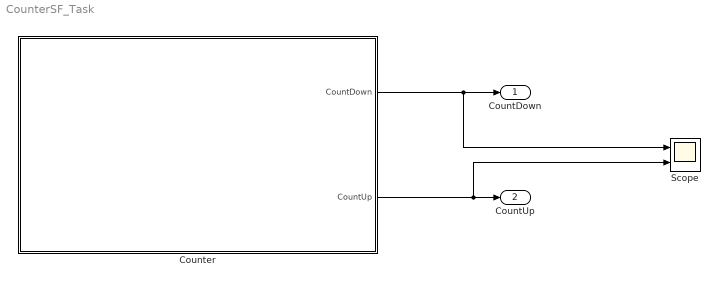
== stateflow chart CounterSF_Task/Counter ==
  state CountUp_And_Down_Modifier
    entry:
    CountUp = CountUp + 1;
    CountDown = CountDown - 1;
  state Reset
    entry:
    CountUp = 0;
    CountDown = 10;
  (default) -> CountUp_And_Down_Modifier
  CountUp_And_Down_Modifier -> CountUp_And_Down_Modifier [order 2] : after(1,tick)
  Reset -> CountUp_And_Down_Modifier
  CountUp_And_Down_Modifier -> Reset [order 1] : [CountUp == 10]
  data: CountDown output =11; CountUp output =-1

/*
 * File: CounterSF_Task.c
 *
 * Code generated for Simulink model 'CounterSF_Task'.
 *
 * Model version                  : 1.4
 * Simulink Coder version         : 9.5 (R2021a) 14-Nov-2020
 * C/C++ source code generated on : Mon Feb 12 17:00:32 2024
 *
 * Target selection: ert.tlc
 * Embedded hardware selection: Intel->x86-64 (Windows64)
 * Code generation objectives: Unspecified
 * Validation result: Not run
 */

#include "CounterSF_Task.h"
#include "CounterSF_Task_private.h"

/* Block states (default storage) */
DW_CounterSF_Task_T CounterSF_Task_DW;

/* External outputs (root outports fed by signals with default storage) */
ExtY_CounterSF_Task_T CounterSF_Task_Y;

/* Real-time model */
static RT_MODEL_CounterSF_Task_T CounterSF_Task_M_;
RT_MODEL_CounterSF_Task_T *const CounterSF_Task_M = &CounterSF_Task_M_;

/* Model step function */
void CounterSF_Task_step(void)
{
  /* Chart: '<Root>/Counter' incorporates:
   *  Outport: '<Root>/CountDown'
   *  Outport: '<Root>/CountUp'
   */
  CounterSF_Task_Counter(&CounterSF_Task_Y.CountDown, &CounterSF_Task_Y.CountUp,
    &CounterSF_Task_DW.sf_Counter);
}
